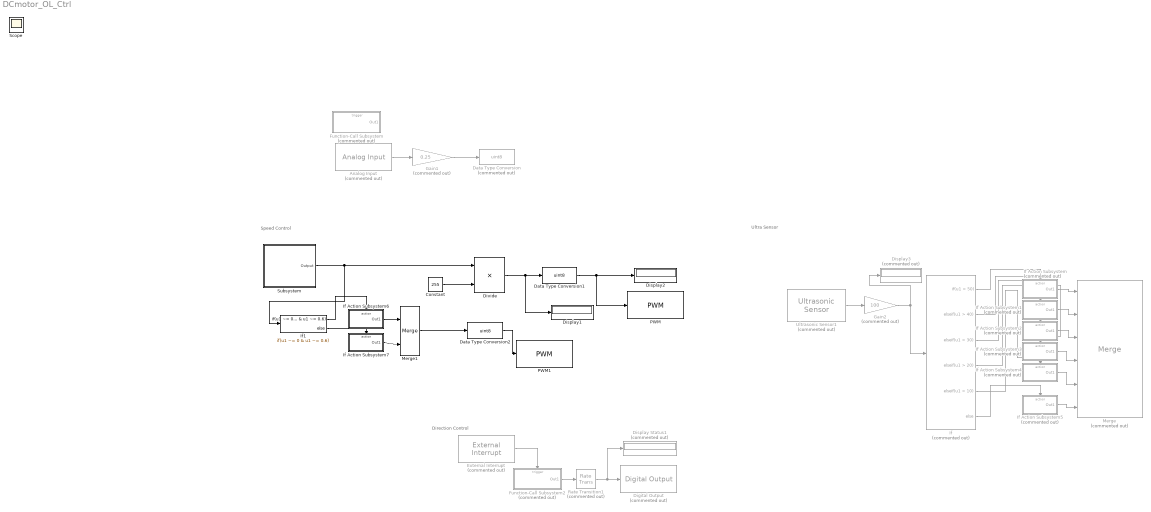
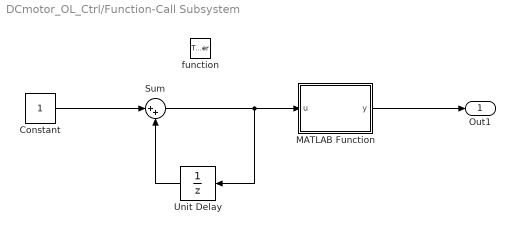
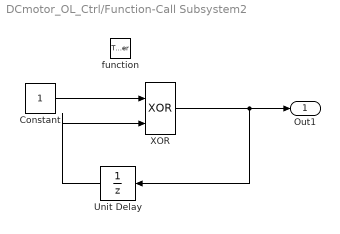
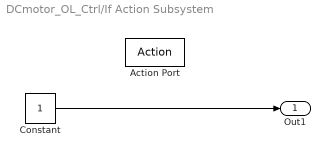
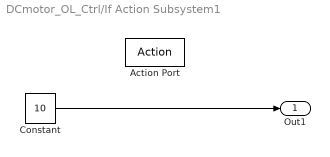
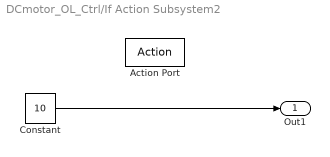
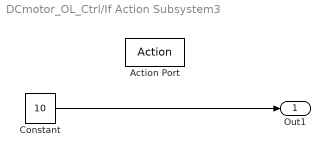
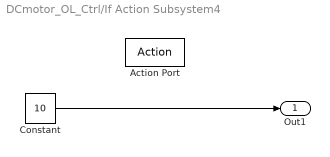
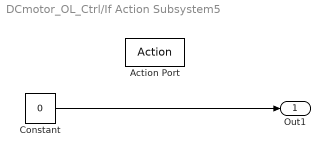
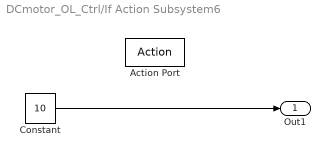
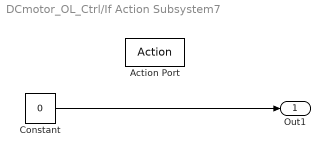
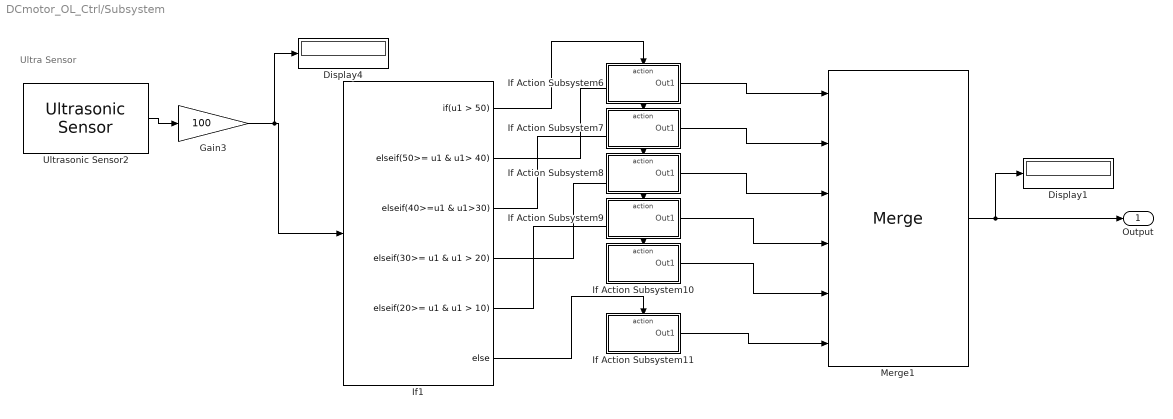
== system DCmotor_OL_Ctrl/Subsystem/If Action Subsystem10 ==
  Action Port : ActionPort  ActionPortLabel=elseif( 20>= u1 & u1 > 10)
  Constant : Constant  Value=0.2
  Out1 : Outport
  wires:
  Constant/1 -> Out1/1

== system DCmotor_OL_Ctrl/Subsystem/If Action Subsystem11 ==
  Action Port : ActionPort  ActionPortLabel=else
  Constant : Constant  Value=0
  Out1 : Outport
  wires:
  Constant/1 -> Out1/1

== system DCmotor_OL_Ctrl/Subsystem/If Action Subsystem6 ==
  Action Port : ActionPort  ActionPortLabel=if(u1 > 50)
  Constant : Constant  Value=0.6
  Out1 : Outport
  wires:
  Constant/1 -> Out1/1

== system DCmotor_OL_Ctrl/Subsystem/If Action Subsystem7 ==
  Action Port : ActionPort  ActionPortLabel=elseif(50>= u1 & u1> 40)
  Constant : Constant  Value=0.5
  Out1 : Outport
  wires:
  Constant/1 -> Out1/1

== system DCmotor_OL_Ctrl/Subsystem/If Action Subsystem8 ==
  Action Port : ActionPort  ActionPortLabel=elseif( 40>=u1 & u1>30)
  Constant : Constant  Value=0.4
  Out1 : Outport
  wires:
  Constant/1 -> Out1/1

== system DCmotor_OL_Ctrl/Subsystem/If Action Subsystem9 ==
  Action Port : ActionPort  ActionPortLabel=elseif( 30>= u1 & u1 > 20)
  Constant : Constant  Value=0.3
  Out1 : Outport
  wires:
  Constant/1 -> Out1/1

== matlab function DCmotor_OL_Ctrl/Function-Call
Subsystem/MATLAB Function ==
function y = fcn(u)
 rem = mod(u,2);
 if rem == 0
     y=0;
 else
     y=1;
 end

 if u > 100
     u = 1;
 end

/*
 * Trial License - for use to evaluate programs for possible purchase as
 * an end-user only.
 *
 * File: DCmotor_OL_Ctrl.c
 *
 * Code generated for Simulink model 'DCmotor_OL_Ctrl'.
 *
 * Model version                  : 3.80
 * Simulink Coder version         : 9.8 (R2022b) 13-May-2022
 * C/C++ source code generated on : Fri Nov  3 10:51:24 2023
 *
 * Target selection: ert.tlc
 * Embedded hardware selection: Atmel->AVR
 * Code generation objectives: Unspecified
 * Validation result: Not run
 */

#include "DCmotor_OL_Ctrl.h"
#include "rtwtypes.h"
#include "DCmotor_OL_Ctrl_private.h"
#include <math.h>
#include "rt_nonfinite.h"
#include "DCmotor_OL_Ctrl_types.h"

/* Block signals (default storage) */
B_DCmotor_OL_Ctrl_T DCmotor_OL_Ctrl_B;

/* Block states (default storage) */
DW_DCmotor_OL_Ctrl_T DCmotor_OL_Ctrl_DW;

/* Real-time model */
static RT_MODEL_DCmotor_OL_Ctrl_T DCmotor_OL_Ctrl_M_;
RT_MODEL_DCmotor_OL_Ctrl_T *const DCmotor_OL_Ctrl_M = &DCmotor_OL_Ctrl_M_;
static void rate_monotonic_scheduler(void);

/* Callback for Hardware Interrupt Block: '<Root>/External Interrupt' */
void MW_ISR_2(void)
{
  /* Call the system: <Root>/Function-Call Subsystem2 */
  {
    /* Reset subsysRan breadcrumbs */
    srClearBC(DCmotor_OL_Ctrl_DW.FunctionCallSubsystem2_SubsysRa);

    /* S-Function (arduinoextint_sfcn): '<Root>/External Interrupt' */

    /* Output and update for function-call system: '<Root>/Function-Call Subsystem2' */

    /* Asynchronous task (with no priority assigned)
     * reads absolute time */
    switch (DCmotor_OL_Ctrl_M->Timing.rtmDbBufWriteBuf2) {
     case 0:
      DCmotor_OL_Ctrl_M->Timing.rtmDbBufReadBuf2 = 1;
      break;

     case 1:
      DCmotor_OL_Ctrl_M->Timing.rtmDbBufReadBuf2 = 0;
      break;

     default:
      DCmotor_OL_Ctrl_M->Timing.rtmDbBufReadBuf2 =
        DCmotor_OL_Ctrl_M->Timing.rtmDbBufLastBufWr2;
      break;
    }

    DCmotor_OL_Ctrl_M->Timing.clockTick2 =
      DCmotor_OL_Ctrl_M->Timing.rtmDbBufClockTick2
      [DCmotor_OL_Ctrl_M->Timing.rtmDbBufReadBuf2];
    DCmotor_OL_Ctrl_M->Timing.rtmDbBufReadBuf2 = 0xFF;

    /* Logic: '<S1>/XOR' incorporates:
     *  Constant: '<S1>/Constant'
     *  UnitDelay: '<S1>/Unit Delay'
     */
    DCmotor_OL_Ctrl_DW.UnitDelay_DSTATE = (DCmotor_OL_Ctrl_P.Constant_Value !=
      0.0) ^ DCmotor_OL_Ctrl_DW.UnitDelay_DSTATE;
    DCmotor_OL_Ctrl_DW.FunctionCallSubsystem2_SubsysRa = 4;

    /* End of Outputs for S-Function (arduinoextint_sfcn): '<Root>/External Interrupt' */
  }
}

/*
 * Set which subrates need to run this base step (base rate always runs).
 * This function must be called prior to calling the model step function
 * in order to remember which rates need to run this base step.  The
 * buffering of events allows for overlapping preemption.
 */
void DCmotor_OL_Ctrl_SetEventsForThisBaseStep(boolean_T *eventFlags)
{
  /* Task runs when its counter is zero, computed via rtmStepTask macro */
  eventFlags[1] = ((boolean_T)rtmStepTask(DCmotor_OL_Ctrl_M, 1));
}

/*
 *         This function updates active task flag for each subrate
 *         and rate transition flags for tasks that exchange data.
 *         The function assumes rate-monotonic multitasking scheduler.
 *         The function must be called at model base rate so that
 *         the generated code self-manages all its subrates and rate
 *         transition flags.
 */
static void rate_monotonic_scheduler(void)
{
  /* Compute which subrates run during the next base time step.  Subrates
   * are an integer multiple of the base rate counter.  Therefore, the subtask
   * counter is reset when it reaches its limit (zero means run).
   */
  (DCmotor_OL_Ctrl_M->Timing.TaskCounters.TID[1])++;
  if ((DCmotor_OL_Ctrl_M->Timing.TaskCounters.TID[1]) > 99) {/* Sample time: [0.1s, 0.0s] */
    DCmotor_OL_Ctrl_M->Timing.TaskCounters.TID[1] = 0;
  }
}

/*
 * Output and update for action system:
 *    '<Root>/If Action Subsystem6'
 *    '<Root>/If Action Subsystem7'
 *    '<S4>/If Action Subsystem6'
 *    '<S4>/If Action Subsystem7'
 *    '<S4>/If Action Subsystem8'
 *    '<S4>/If Action Subsystem9'
 *    '<S4>/If Action Subsystem10'
 *    '<S4>/If Action Subsystem11'
 */
void DCmotor__IfActionSubsystem6(real_T *rty_Out1,
  P_IfActionSubsystem6_DCmotor__T *localP)
{
  /* SignalConversion generated from: '<S2>/Out1' incorporates:
   *  Constant: '<S2>/Constant'
   */
  *rty_Out1 = localP->Constant_Value;
}

/* Model step function for TID0 */
void DCmotor_OL_Ctrl_step0(void)       /* Sample time: [0.001s, 0.0s] */
{
  {                                    /* Sample time: [0.001s, 0.0s] */
    rate_monotonic_scheduler();
  }

  /* Update absolute time */
  /* The "clockTick0" counts the number of times the code of this task has
   * been executed. The absolute time is the multiplication of "clockTick0"
   * and "Timing.stepSize0". Size of "clockTick0" ensures timer will not
   * overflow during the application lifespan selected.
   */
  DCmotor_OL_Ctrl_M->Timing.taskTime0 =
    ((time_T)(++DCmotor_OL_Ctrl_M->Timing.clockTick0)) *
    DCmotor_OL_Ctrl_M->Timing.stepSize0;
  switch (DCmotor_OL_Ctrl_M->Timing.rtmDbBufReadBuf2) {
   case 0:
    DCmotor_OL_Ctrl_M->Timing.rtmDbBufWriteBuf2 = 1;
    break;

   case 1:
    DCmotor_OL_Ctrl_M->Timing.rtmDbBufWriteBuf2 = 0;
    break;

   default:
    DCmotor_OL_Ctrl_M->Timing.rtmDbBufWriteBuf2 =
      !DCmotor_OL_Ctrl_M->Timing.rtmDbBufLastBufWr2;
    break;
  }

  DCmotor_OL_Ctrl_M->Timing.rtmDbBufClockTick2
    [DCmotor_OL_Ctrl_M->Timing.rtmDbBufWriteBuf2] =
    DCmotor_OL_Ctrl_M->Timing.clockTick0;
  DCmotor_OL_Ctrl_M->Timing.rtmDbBufLastBufWr2 =
    DCmotor_OL_Ctrl_M->Timing.rtmDbBufWriteBuf2;
  DCmotor_OL_Ctrl_M->Timing.rtmDbBufWriteBuf2 = 0xFF;
}

/* Model step function for TID1 */
void DCmotor_OL_Ctrl_step1(void)       /* Sample time: [0.1s, 0.0s] */
{
  codertarget_arduinobase_inter_T *obj;
  real_T Merge1_h;
  uint32_T duration;

  /* Reset subsysRan breadcrumbs */
  srClearBC(DCmotor_OL_Ctrl_DW.IfActionSubsystem6.IfActionSubsystem6_SubsysRanBC);

  /* MATLABSystem: '<S4>/Ultrasonic Sensor2' */
  if (DCmotor_OL_Ctrl_DW.obj_o.TunablePropsChanged) {
    DCmotor_OL_Ctrl_DW.obj_o.TunablePropsChanged = false;
  }

  MW_UltrasonicRead(&duration, 1, 50, 51, 10);

  /* Gain: '<S4>/Gain3' incorporates:
   *  MATLABSystem: '<S4>/Ultrasonic Sensor2'
   */
  DCmotor_OL_Ctrl_B.Gain3 = (real_T)duration * 0.000343 / 2.0 *
    DCmotor_OL_Ctrl_P.Gain3_Gain;

  /* If: '<S4>/If1' */
  if (DCmotor_OL_Ctrl_B.Gain3 > 50.0) {
    /* Outputs for IfAction SubSystem: '<S4>/If Action Subsystem6' incorporates:
     *  ActionPort: '<S7>/Action Port'
     */
    DCmotor__IfActionSubsystem6(&DCmotor_OL_Ctrl_B.Merge1,
      &DCmotor_OL_Ctrl_P.IfActionSubsystem6_j);

    /* End of Outputs for SubSystem: '<S4>/If Action Subsystem6' */
  } else if ((DCmotor_OL_Ctrl_B.Gain3 <= 50.0) && (DCmotor_OL_Ctrl_B.Gain3 >
              40.0)) {
    /* Outputs for IfAction SubSystem: '<S4>/If Action Subsystem7' incorporates:
     *  ActionPort: '<S8>/Action Port'
     */
    DCmotor__IfActionSubsystem6(&DCmotor_OL_Ctrl_B.Merge1,
      &DCmotor_OL_Ctrl_P.IfActionSubsystem7_n);

    /* End of Outputs for SubSystem: '<S4>/If Action Subsystem7' */
  } else if ((DCmotor_OL_Ctrl_B.Gain3 <= 40.0) && (DCmotor_OL_Ctrl_B.Gain3 >
              30.0)) {
    /* Outputs for IfAction SubSystem: '<S4>/If Action Subsystem8' incorporates:
     *  ActionPort: '<S9>/Action Port'
     */
    DCmotor__IfActionSubsystem6(&DCmotor_OL_Ctrl_B.Merge1,
      &DCmotor_OL_Ctrl_P.IfActionSubsystem8);

    /* End of Outputs for SubSystem: '<S4>/If Action Subsystem8' */
  } else if ((DCmotor_OL_Ctrl_B.Gain3 <= 30.0) && (DCmotor_OL_Ctrl_B.Gain3 >
              20.0)) {
    /* Outputs for IfAction SubSystem: '<S4>/If Action Subsystem9' incorporates:
     *  ActionPort: '<S10>/Action Port'
     */
    DCmotor__IfActionSubsystem6(&DCmotor_OL_Ctrl_B.Merge1,
      &DCmotor_OL_Ctrl_P.IfActionSubsystem9);

    /* End of Outputs for SubSystem: '<S4>/If Action Subsystem9' */
  } else if ((DCmotor_OL_Ctrl_B.Gain3 <= 20.0) && (DCmotor_OL_Ctrl_B.Gain3 >
              10.0)) {
    /* Outputs for IfAction SubSystem: '<S4>/If Action Subsystem10' incorporates:
     *  ActionPort: '<S5>/Action Port'
     */
    DCmotor__IfActionSubsystem6(&DCmotor_OL_Ctrl_B.Merge1,
      &DCmotor_OL_Ctrl_P.IfActionSubsystem10);

    /* End of Outputs for SubSystem: '<S4>/If Action Subsystem10' */
  } else {
    /* Outputs for IfAction SubSystem: '<S4>/If Action Subsystem11' incorporates:
     *  ActionPort: '<S6>/Action Port'
     */
    DCmotor__IfActionSubsystem6(&DCmotor_OL_Ctrl_B.Merge1,
      &DCmotor_OL_Ctrl_P.IfActionSubsystem11);

    /* End of Outputs for SubSystem: '<S4>/If Action Subsystem11' */
  }

  /* End of If: '<S4>/If1' */

  /* Product: '<Root>/Divide' incorporates:
   *  Constant: '<Root>/Constant'
   */
  DCmotor_OL_Ctrl_B.Divide = DCmotor_OL_Ctrl_B.Merge1 *
    DCmotor_OL_Ctrl_P.Constant_Value_d;

  /* DataTypeConversion: '<Root>/Data Type Conversion1' */
  Merge1_h = floor(DCmotor_OL_Ctrl_B.Divide);
  if (rtIsNaN(Merge1_h) || rtIsInf(Merge1_h)) {
    Merge1_h = 0.0;
  } else {
    Merge1_h = fmod(Merge1_h, 256.0);
  }

  /* DataTypeConversion: '<Root>/Data Type Conversion1' */
  DCmotor_OL_Ctrl_B.DataTypeConversion1 = (uint8_T)(Merge1_h < 0.0 ? (int16_T)
    (uint8_T)-(int8_T)(uint8_T)-Merge1_h : (int16_T)(uint8_T)Merge1_h);

  /* MATLABSystem: '<Root>/PWM' */
  obj = &DCmotor_OL_Ctrl_DW.obj_m;
  obj->PWMDriverObj.MW_PWM_HANDLE = MW_PWM_GetHandle(11UL);
  MW_PWM_SetDutyCycle(DCmotor_OL_Ctrl_DW.obj_m.PWMDriverObj.MW_PWM_HANDLE,
                      (real_T)DCmotor_OL_Ctrl_B.DataTypeConversion1);

  /* If: '<Root>/If1' */
  if ((DCmotor_OL_Ctrl_B.Merge1 != 0.0) && (DCmotor_OL_Ctrl_B.Merge1 != 0.6)) {
    /* Outputs for IfAction SubSystem: '<Root>/If Action Subsystem6' incorporates:
     *  ActionPort: '<S2>/Action Port'
     */
    DCmotor__IfActionSubsystem6(&Merge1_h, &DCmotor_OL_Ctrl_P.IfActionSubsystem6);

    /* End of Outputs for SubSystem: '<Root>/If Action Subsystem6' */
  } else {
    /* Outputs for IfAction SubSystem: '<Root>/If Action Subsystem7' incorporates:
     *  ActionPort: '<S3>/Action Port'
     */
    DCmotor__IfActionSubsystem6(&Merge1_h, &DCmotor_OL_Ctrl_P.IfActionSubsystem7);

    /* End of Outputs for SubSystem: '<Root>/If Action Subsystem7' */
  }

  /* End of If: '<Root>/If1' */

  /* MATLABSystem: '<Root>/PWM1' */
  obj = &DCmotor_OL_Ctrl_DW.obj_g;
  obj->PWMDriverObj.MW_PWM_HANDLE = MW_PWM_GetHandle(5UL);

  /* DataTypeConversion: '<Root>/Data Type Conversion2' */
  Merge1_h = floor(Merge1_h);
  if (rtIsNaN(Merge1_h) || rtIsInf(Merge1_h)) {
    Merge1_h = 0.0;
  } else {
    Merge1_h = fmod(Merge1_h, 256.0);
  }

  /* MATLABSystem: '<Root>/PWM1' incorporates:
   *  DataTypeConversion: '<Root>/Data Type Conversion2'
   */
  MW_PWM_SetDutyCycle(DCmotor_OL_Ctrl_DW.obj_g.PWMDriverObj.MW_PWM_HANDLE,
                      (real_T)(Merge1_h < 0.0 ? (int16_T)(uint8_T)-(int8_T)
    (uint8_T)-Merge1_h : (int16_T)(uint8_T)Merge1_h));

  /* RateTransition: '<Root>/Rate Transition1' incorporates:
   *  UnitDelay: '<S1>/Unit Delay'
   */
  DCmotor_OL_Ctrl_B.RateTransition1 = DCmotor_OL_Ctrl_DW.UnitDelay_DSTATE;

  /* MATLABSystem: '<Root>/Digital Output' */
  writeDigitalPin(13, (uint8_T)DCmotor_OL_Ctrl_B.RateTransition1);

  /* Update absolute time */
  /* The "clockTick1" counts the number of times the code of this task has
   * been executed. The resolution of this integer timer is 0.1, which is the step size
   * of the task. Size of "clockTick1" ensures timer will not overflow during the
   * application lifespan selected.
   */
  DCmotor_OL_Ctrl_M->Timing.clockTick1++;
}
